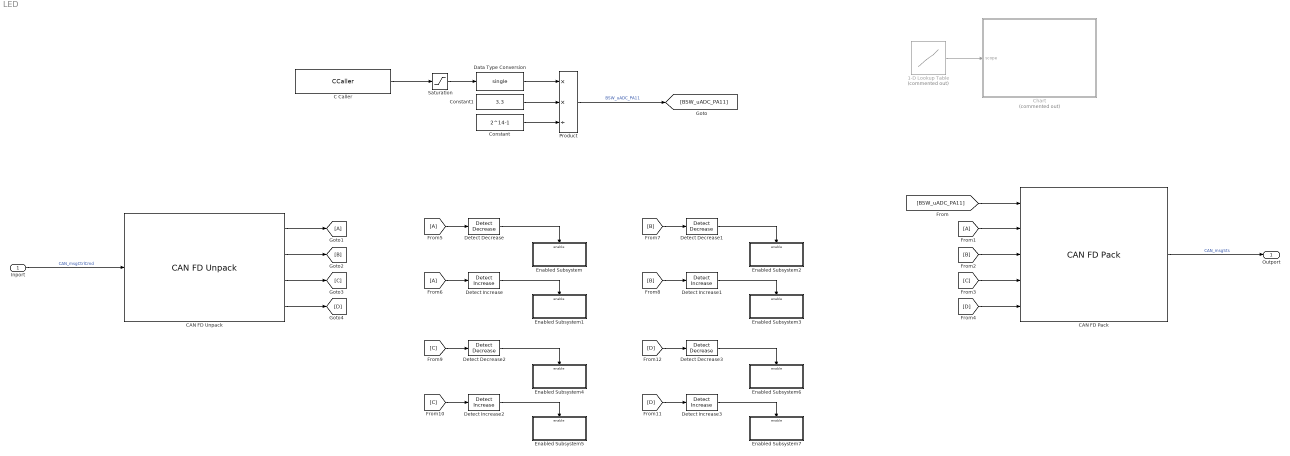
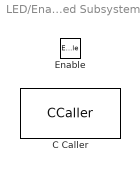
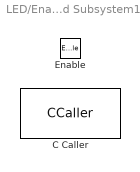
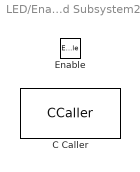
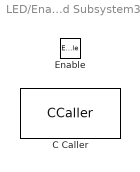
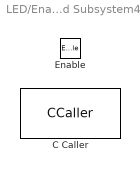
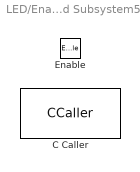
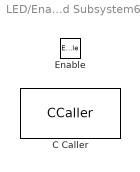
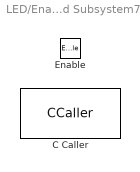
== stateflow chart LED/Chart ==
  state LED0_ON
    en:
    LED0_ON();
  state LED0_OFF
    en:
    LED0_OFF();
  state LED1_ON
    en:
    LED1_ON();
  state LED1_OFF
    en:
    LED1_OFF();
  state LED2_ON
    en:
    LED2_ON();
  state LED2_OFF
    en:
    LED2_OFF();
  state LED3_ON
    en:
    LED3_ON();
  state LED3_OFF
    en:
    LED3_OFF();
  (default) -> LED0_ON
  LED0_OFF -> LED0_ON : [after(1,sec)]
  LED0_ON -> LED0_OFF [order 2] : [scope == 1 &&... after(1,sec)]
  LED0_ON -> LED1_ON [order 1] : [scope > 1&&... after(1,sec)]
  LED1_OFF -> LED0_OFF : [after(1,sec)]
  LED1_ON -> LED1_OFF [order 2] : [scope == 2&&... after(1,sec)]
  LED1_ON -> LED2_ON [order 1] : [scope > 2&&... after(1,sec)]
  LED2_OFF -> LED1_OFF : [after(1,sec)]
  LED2_ON -> LED2_OFF [order 2] : [scope == 3&&... after(1,sec)]
  LED2_ON -> LED3_ON [order 1] : [scope > 3&&... after(1,sec)]
  LED3_OFF -> LED2_OFF : [after(1,sec)]
  LED3_ON -> LED3_OFF : [after(1,sec)]
  data: scope input uint8

/*
 * File: LED.c
 *
 * Code generated for Simulink model 'LED'.
 *
 * Model version                  : 14.135
 * Simulink Coder version         : 9.8 (R2022b) 13-May-2022
 * C/C++ source code generated on : Thu Jul  2 17:44:00 2026
 *
 * Target selection: ert.tlc
 * Embedded hardware selection: ARM Compatible->ARM 7
 * Code generation objectives: Unspecified
 * Validation result: Not run
 */

#include "LED.h"
#include "rtwtypes.h"
#include "LED_types.h"

/* Exported block signals */
CAN_FD_MESSAGE_BUS CAN_msgCtrlCmd;     /* '<Root>/Inport' */
CAN_FD_MESSAGE_BUS CAN_msgSts;         /* '<Root>/CAN FD Pack' */
real32_T BSW_uADC_PA11;                /* '<Root>/Product' */

/* Block signals (default storage) */
B_LED_T LED_B;

/* Block states (default storage) */
DW_LED_T LED_DW;

/* Model step function */
void LED_step(void)
{
  uint16_T rtb_Saturation;

  /* CCaller: '<Root>/C Caller' */
  rtb_Saturation = ADC_userGetAdc();

  /* Saturate: '<Root>/Saturation' */
  if (rtb_Saturation > 16383) {
    rtb_Saturation = 16383U;
  }

  /* Product: '<Root>/Product' incorporates:
   *  Constant: '<Root>/Constant'
   *  Constant: '<Root>/Constant1'
   *  DataTypeConversion: '<Root>/Data Type Conversion'
   *  Saturate: '<Root>/Saturation'
   */
  BSW_uADC_PA11 = (real32_T)rtb_Saturation * 3.3F / 16383.0F;

  /* S-Function (scanfdunpack): '<Root>/CAN FD Unpack' incorporates:
   *  Inport: '<Root>/Inport'
   */
  {
    /* S-Function (scanfdunpack): '<Root>/CAN FD Unpack' */
    if ((8 == CAN_msgCtrlCmd.Length) && (CAN_msgCtrlCmd.ID != INVALID_CAN_ID) )
    {
      if ((257 == CAN_msgCtrlCmd.ID) && (0U == CAN_msgCtrlCmd.Extended) ) {
        {
          /* --------------- START Unpacking signal 0 ------------------
           *  startBit                = 0
           *  length                  = 1
           *  desiredSignalByteLayout = BIGENDIAN
           *  dataType                = UNSIGNED
           *  factor                  = 1.0
           *  offset                  = 0.0
           * -----------------------------------------------------------------------*/
          {
            real64_T outValue = 0;

            {
              uint8_T unpackedValue = 0;

              {
                uint8_T tempValue = (uint8_T) (0);

                {
                  tempValue = tempValue | (uint8_T)((uint8_T)
                    (CAN_msgCtrlCmd.Data[0]) & (uint8_T)(0x1U));
                }

                unpackedValue = tempValue;
              }

              outValue = (real64_T) (unpackedValue);
            }

            {
              real64_T result = (real64_T) outValue;
              LED_B.CANFDUnpack_o1 = result;
            }
          }

          /* --------------- START Unpacking signal 1 ------------------
           *  startBit                = 6
           *  length                  = 1
           *  desiredSignalByteLayout = BIGENDIAN
           *  dataType                = UNSIGNED
           *  factor                  = 1.0
           *  offset                  = 0.0
           * -----------------------------------------------------------------------*/
          {
            real64_T outValue = 0;

            {
              uint8_T unpackedValue = 0;

              {
                uint8_T tempValue = (uint8_T) (0);

                {
                  tempValue = tempValue | (uint8_T)((uint8_T)((uint8_T)
                    (CAN_msgCtrlCmd.Data[0]) & (uint8_T)(0x40U)) >> 6);
                }

                unpackedValue = tempValue;
              }

              outValue = (real64_T) (unpackedValue);
            }

            {
              real64_T result = (real64_T) outValue;
              LED_B.CANFDUnpack_o2 = result;
            }
          }

          /* --------------- START Unpacking signal 2 ------------------
           *  startBit                = 2
           *  length                  = 1
           *  desiredSignalByteLayout = BIGENDIAN
           *  dataType                = UNSIGNED
           *  factor                  = 1.0
           *  offset                  = 0.0
           * -----------------------------------------------------------------------*/
          {
            real64_T outValue = 0;

            {
              uint8_T unpackedValue = 0;

              {
                uint8_T tempValue = (uint8_T) (0);

                {
                  tempValue = tempValue | (uint8_T)((uint8_T)((uint8_T)
                    (CAN_msgCtrlCmd.Data[0]) & (uint8_T)(0x4U)) >> 2);
                }

                unpackedValue = tempValue;
              }

              outValue = (real64_T) (unpackedValue);
            }

            {
              real64_T result = (real64_T) outValue;
              LED_B.CANFDUnpack_o3 = result;
            }
          }

          /* --------------- START Unpacking signal 3 ------------------
           *  startBit                = 3
           *  length                  = 1
           *  desiredSignalByteLayout = BIGENDIAN
           *  dataType                = UNSIGNED
           *  factor                  = 1.0
           *  offset                  = 0.0
           * -----------------------------------------------------------------------*/
          {
            real64_T outValue = 0;

            {
              uint8_T unpackedValue = 0;

              {
                uint8_T tempValue = (uint8_T) (0);

                {
                  tempValue = tempValue | (uint8_T)((uint8_T)((uint8_T)
                    (CAN_msgCtrlCmd.Data[0]) & (uint8_T)(0x8U)) >> 3);
                }

                unpackedValue = tempValue;
              }

              outValue = (real64_T) (unpackedValue);
            }

            {
              real64_T result = (real64_T) outValue;
              LED_B.CANFDUnpack_o4 = result;
            }
          }
        }
      }
    }
  }

  /* S-Function (scanfdpack): '<Root>/CAN FD Pack' */
  /* S-Function (scanfdpack): '<Root>/CAN FD Pack' */
  CAN_msgSts.ID = 258;
  CAN_msgSts.Length = 8U;
  CAN_msgSts.Extended = 0U;
  CAN_msgSts.Remote = 0;
  CAN_msgSts.BRS = 1;
  CAN_msgSts.ProtocolMode = 1;
  CAN_msgSts.DLC = 8U;
  CAN_msgSts.Data[0] = 0;
  CAN_msgSts.Data[1] = 0;
  CAN_msgSts.Data[2] = 0;
  CAN_msgSts.Data[3] = 0;
  CAN_msgSts.Data[4] = 0;
  CAN_msgSts.Data[5] = 0;
  CAN_msgSts.Data[6] = 0;
  CAN_msgSts.Data[7] = 0;
  CAN_msgSts.Data[8] = 0;
  CAN_msgSts.Data[9] = 0;
  CAN_msgSts.Data[10] = 0;
  CAN_msgSts.Data[11] = 0;
  CAN_msgSts.Data[12] = 0;
  CAN_msgSts.Data[13] = 0;
  CAN_msgSts.Data[14] = 0;
  CAN_msgSts.Data[15] = 0;
  CAN_msgSts.Data[16] = 0;
  CAN_msgSts.Data[17] = 0;
  CAN_msgSts.Data[18] = 0;
  CAN_msgSts.Data[19] = 0;
  CAN_msgSts.Data[20] = 0;
  CAN_msgSts.Data[21] = 0;
  CAN_msgSts.Data[22] = 0;
  CAN_msgSts.Data[23] = 0;
  CAN_msgSts.Data[24] = 0;
  CAN_msgSts.Data[25] = 0;
  CAN_msgSts.Data[26] = 0;
  CAN_msgSts.Data[27] = 0;
  CAN_msgSts.Data[28] = 0;
  CAN_msgSts.Data[29] = 0;
  CAN_msgSts.Data[30] = 0;
  CAN_msgSts.Data[31] = 0;
  CAN_msgSts.Data[32] = 0;
  CAN_msgSts.Data[33] = 0;
  CAN_msgSts.Data[34] = 0;
  CAN_msgSts.Data[35] = 0;
  CAN_msgSts.Data[36] = 0;
  CAN_msgSts.Data[37] = 0;
  CAN_msgSts.Data[38] = 0;
  CAN_msgSts.Data[39] = 0;
  CAN_msgSts.Data[40] = 0;
  CAN_msgSts.Data[41] = 0;
  CAN_msgSts.Data[42] = 0;
  CAN_msgSts.Data[43] = 0;
  CAN_msgSts.Data[44] = 0;
  CAN_msgSts.Data[45] = 0;
  CAN_msgSts.Data[46] = 0;
  CAN_msgSts.Data[47] = 0;
  CAN_msgSts.Data[48] = 0;
  CAN_msgSts.Data[49] = 0;
  CAN_msgSts.Data[50] = 0;
  CAN_msgSts.Data[51] = 0;
  CAN_msgSts.Data[52] = 0;
  CAN_msgSts.Data[53] = 0;
  CAN_msgSts.Data[54] = 0;
  CAN_msgSts.Data[55] = 0;
  CAN_msgSts.Data[56] = 0;
  CAN_msgSts.Data[57] = 0;
  CAN_msgSts.Data[58] = 0;
  CAN_msgSts.Data[59] = 0;
  CAN_msgSts.Data[60] = 0;
  CAN_msgSts.Data[61] = 0;
  CAN_msgSts.Data[62] = 0;
  CAN_msgSts.Data[63] = 0;

  {
    /* --------------- START Packing signal 0 ------------------
     *  startBit                = 16
     *  length                  = 16
     *  desiredSignalByteLayout = BIGENDIAN
     *  dataType                = UNSIGNED
     *  factor                  = 0.001
     *  offset                  = 0.0
     *  minimum                 = 0.0
     *  maximum                 = 0.0
     * -----------------------------------------------------------------------*/
    {
      real32_T outValue = 0;

      {
        real32_T result = BSW_uADC_PA11;

        /* no offset to apply */
        result = result * (1 / 0.001F);

        /* round to closest integer value for integer CAN signal */
        outValue = roundf(result);
      }

      {
        uint16_T packedValue;
        if (outValue > (real32_T)(65535)) {
          packedValue = (uint16_T) 65535;
        } else if (outValue < (real32_T)(0)) {
          packedValue = (uint16_T) 0;
        } else {
          packedValue = (uint16_T) (outValue);
        }

        {
          {
            CAN_msgSts.Data[2] = CAN_msgSts.Data[2] | (uint8_T)((uint16_T)
              (packedValue & (uint16_T)0xFFU));
            CAN_msgSts.Data[1] = CAN_msgSts.Data[1] | (uint8_T)((uint16_T)
              ((uint16_T)(packedValue & (uint16_T)0xFF00U) >> 8));
          }
        }
      }
    }

    /* --------------- START Packing signal 1 ------------------
     *  startBit                = 0
     *  length                  = 1
     *  desiredSignalByteLayout = BIGENDIAN
     *  dataType                = UNSIGNED
     *  factor                  = 1.0
     *  offset                  = 0.0
     *  minimum                 = 0.0
     *  maximum                 = 0.0
     * -----------------------------------------------------------------------*/
    {
      real64_T outValue = 0;

      {
        real64_T result = LED_B.CANFDUnpack_o1;

        /* no scaling required */
        /* round to closest integer value for integer CAN signal */
        outValue = round(result);
      }

      {
        uint8_T packedValue;
        if (outValue > (real64_T)(1)) {
          packedValue = (uint8_T) 1;
        } else if (outValue < (real64_T)(0)) {
          packedValue = (uint8_T) 0;
        } else {
          packedValue = (uint8_T) (outValue);
        }

        {
          {
            CAN_msgSts.Data[0] = CAN_msgSts.Data[0] | (uint8_T)((uint8_T)
              (packedValue & (uint8_T)0x1U));
          }
        }
      }
    }

    /* --------------- START Packing signal 2 ------------------
     *  startBit                = 3
     *  length                  = 1
     *  desiredSignalByteLayout = BIGENDIAN
     *  dataType                = UNSIGNED
     *  factor                  = 1.0
     *  offset                  = 0.0
     *  minimum                 = 0.0
     *  maximum                 = 0.0
     * -----------------------------------------------------------------------*/
    {
      real64_T outValue = 0;

      {
        real64_T result = LED_B.CANFDUnpack_o2;

        /* no scaling required */
        /* round to closest integer value for integer CAN signal */
        outValue = round(result);
      }

      {
        uint8_T packedValue;
        if (outValue > (real64_T)(1)) {
          packedValue = (uint8_T) 1;
        } else if (outValue < (real64_T)(0)) {
          packedValue = (uint8_T) 0;
        } else {
          packedValue = (uint8_T) (outValue);
        }

        {
          {
            CAN_msgSts.Data[0] = CAN_msgSts.Data[0] | (uint8_T)((uint8_T)
              ((uint8_T)(packedValue & (uint8_T)0x1U) << 3));
          }
        }
      }
    }

    /* --------------- START Packing signal 3 ------------------
     *  startBit                = 1
     *  length                  = 1
     *  desiredSignalByteLayout = BIGENDIAN
     *  dataType                = UNSIGNED
     *  factor                  = 1.0
     *  offset                  = 0.0
     *  minimum                 = 0.0
     *  maximum                 = 0.0
     * -----------------------------------------------------------------------*/
    {
      real64_T outValue = 0;

      {
        real64_T result = LED_B.CANFDUnpack_o3;

        /* no scaling required */
        /* round to closest integer value for integer CAN signal */
        outValue = round(result);
      }

      {
        uint8_T packedValue;
        if (outValue > (real64_T)(1)) {
          packedValue = (uint8_T) 1;
        } else if (outValue < (real64_T)(0)) {
          packedValue = (uint8_T) 0;
        } else {
          packedValue = (uint8_T) (outValue);
        }

        {
          {
            CAN_msgSts.Data[0] = CAN_msgSts.Data[0] | (uint8_T)((uint8_T)
              ((uint8_T)(packedValue & (uint8_T)0x1U) << 1));
          }
        }
      }
    }

    /* --------------- START Packing signal 4 ------------------
     *  startBit                = 2
     *  length                  = 1
     *  desiredSignalByteLayout = BIGENDIAN
     *  dataType                = UNSIGNED
     *  factor                  = 1.0
     *  offset                  = 0.0
     *  minimum                 = 0.0
     *  maximum                 = 0.0
     * -----------------------------------------------------------------------*/
    {
      real64_T outValue = 0;

      {
        real64_T result = LED_B.CANFDUnpack_o4;

        /* no scaling required */
        /* round to closest integer value for integer CAN signal */
        outValue = round(result);
      }

      {
        uint8_T packedValue;
        if (outValue > (real64_T)(1)) {
          packedValue = (uint8_T) 1;
        } else if (outValue < (real64_T)(0)) {
          packedValue = (uint8_T) 0;
        } else {
          packedValue = (uint8_T) (outValue);
        }

        {
          {
            CAN_msgSts.Data[0] = CAN_msgSts.Data[0] | (uint8_T)((uint8_T)
              ((uint8_T)(packedValue & (uint8_T)0x1U) << 2));
          }
        }
      }
    }
  }

  /* Outputs for Enabled SubSystem: '<Root>/Enabled Subsystem' incorporates:
   *  EnablePort: '<S9>/Enable'
   */
  /* RelationalOperator: '<S1>/FixPt Relational Operator' incorporates:
   *  UnitDelay: '<S1>/Delay Input1'
   *
   * Block description for '<S1>/Delay Input1':
   *
   *  Store in Global RAM
   */
  if (LED_B.CANFDUnpack_o1 < LED_DW.DelayInput1_DSTATE) {
    /* CCaller: '<S9>/C Caller' */
    LED0_OFF();
  }

  /* End of RelationalOperator: '<S1>/FixPt Relational Operator' */
  /* End of Outputs for SubSystem: '<Root>/Enabled Subsystem' */

  /* Outputs for Enabled SubSystem: '<Root>/Enabled Subsystem1' incorporates:
   *  EnablePort: '<S10>/Enable'
   */
  /* RelationalOperator: '<S5>/FixPt Relational Operator' incorporates:
   *  UnitDelay: '<S5>/Delay Input1'
   *
   * Block description for '<S5>/Delay Input1':
   *
   *  Store in Global RAM
   */
  if (LED_B.CANFDUnpack_o1 > LED_DW.DelayInput1_DSTATE_b) {
    /* CCaller: '<S10>/C Caller' */
    LED0_ON();
  }

  /* End of RelationalOperator: '<S5>/FixPt Relational Operator' */
  /* End of Outputs for SubSystem: '<Root>/Enabled Subsystem1' */

  /* Outputs for Enabled SubSystem: '<Root>/Enabled Subsystem2' incorporates:
   *  EnablePort: '<S11>/Enable'
   */
  /* RelationalOperator: '<S2>/FixPt Relational Operator' incorporates:
   *  UnitDelay: '<S2>/Delay Input1'
   *
   * Block description for '<S2>/Delay Input1':
   *
   *  Store in Global RAM
   */
  if (LED_B.CANFDUnpack_o2 < LED_DW.DelayInput1_DSTATE_i) {
    /* CCaller: '<S11>/C Caller' */
    LED1_OFF();
  }

  /* End of RelationalOperator: '<S2>/FixPt Relational Operator' */
  /* End of Outputs for SubSystem: '<Root>/Enabled Subsystem2' */

  /* Outputs for Enabled SubSystem: '<Root>/Enabled Subsystem3' incorporates:
   *  EnablePort: '<S12>/Enable'
   */
  /* RelationalOperator: '<S6>/FixPt Relational Operator' incorporates:
   *  UnitDelay: '<S6>/Delay Input1'
   *
   * Block description for '<S6>/Delay Input1':
   *
   *  Store in Global RAM
   */
  if (LED_B.CANFDUnpack_o2 > LED_DW.DelayInput1_DSTATE_e) {
    /* CCaller: '<S12>/C Caller' */
    LED1_ON();
  }

  /* End of RelationalOperator: '<S6>/FixPt Relational Operator' */
  /* End of Outputs for SubSystem: '<Root>/Enabled Subsystem3' */

  /* Outputs for Enabled SubSystem: '<Root>/Enabled Subsystem4' incorporates:
   *  EnablePort: '<S13>/Enable'
   */
  /* RelationalOperator: '<S3>/FixPt Relational Operator' incorporates:
   *  UnitDelay: '<S3>/Delay Input1'
   *
   * Block description for '<S3>/Delay Input1':
   *
   *  Store in Global RAM
   */
  if (LED_B.CANFDUnpack_o3 < LED_DW.DelayInput1_DSTATE_er) {
    /* CCaller: '<S13>/C Caller' */
    LED2_OFF();
  }

  /* End of RelationalOperator: '<S3>/FixPt Relational Operator' */
  /* End of Outputs for SubSystem: '<Root>/Enabled Subsystem4' */

  /* Outputs for Enabled SubSystem: '<Root>/Enabled Subsystem5' incorporates:
   *  EnablePort: '<S14>/Enable'
   */
  /* RelationalOperator: '<S7>/FixPt Relational Operator' incorporates:
   *  UnitDelay: '<S7>/Delay Input1'
   *
   * Block description for '<S7>/Delay Input1':
   *
   *  Store in Global RAM
   */
  if (LED_B.CANFDUnpack_o3 > LED_DW.DelayInput1_DSTATE_ee) {
    /* CCaller: '<S14>/C Caller' */
    LED2_ON();
  }

  /* End of RelationalOperator: '<S7>/FixPt Relational Operator' */
  /* End of Outputs for SubSystem: '<Root>/Enabled Subsystem5' */

  /* Outputs for Enabled SubSystem: '<Root>/Enabled Subsystem6' incorporates:
   *  EnablePort: '<S15>/Enable'
   */
  /* RelationalOperator: '<S4>/FixPt Relational Operator' incorporates:
   *  UnitDelay: '<S4>/Delay Input1'
   *
   * Block description for '<S4>/Delay Input1':
   *
   *  Store in Global RAM
   */
  if (LED_B.CANFDUnpack_o4 < LED_DW.DelayInput1_DSTATE_o) {
    /* CCaller: '<S15>/C Caller' */
    LED3_OFF();
  }

  /* End of RelationalOperator: '<S4>/FixPt Relational Operator' */
  /* End of Outputs for SubSystem: '<Root>/Enabled Subsystem6' */

  /* Outputs for Enabled SubSystem: '<Root>/Enabled Subsystem7' incorporates:
   *  EnablePort: '<S16>/Enable'
   */
  /* RelationalOperator: '<S8>/FixPt Relational Operator' incorporates:
   *  UnitDelay: '<S8>/Delay Input1'
   *
   * Block description for '<S8>/Delay Input1':
   *
   *  Store in Global RAM
   */
  if (LED_B.CANFDUnpack_o4 > LED_DW.DelayInput1_DSTATE_f) {
    /* CCaller: '<S16>/C Caller' */
    LED3_ON();
  }

  /* End of RelationalOperator: '<S8>/FixPt Relational Operator' */
  /* End of Outputs for SubSystem: '<Root>/Enabled Subsystem7' */

  /* Update for UnitDelay: '<S1>/Delay Input1'
   *
   * Block description for '<S1>/Delay Input1':
   *
   *  Store in Global RAM
   */
  LED_DW.DelayInput1_DSTATE = LED_B.CANFDUnpack_o1;

  /* Update for UnitDelay: '<S5>/Delay Input1'
   *
   * Block description for '<S5>/Delay Input1':
   *
   *  Store in Global RAM
   */
  LED_DW.DelayInput1_DSTATE_b = LED_B.CANFDUnpack_o1;

  /* Update for UnitDelay: '<S2>/Delay Input1'
   *
   * Block description for '<S2>/Delay Input1':
   *
   *  Store in Global RAM
   */
  LED_DW.DelayInput1_DSTATE_i = LED_B.CANFDUnpack_o2;

  /* Update for UnitDelay: '<S6>/Delay Input1'
   *
   * Block description for '<S6>/Delay Input1':
   *
   *  Store in Global RAM
   */
  LED_DW.DelayInput1_DSTATE_e = LED_B.CANFDUnpack_o2;

  /* Update for UnitDelay: '<S3>/Delay Input1'
   *
   * Block description for '<S3>/Delay Input1':
   *
   *  Store in Global RAM
   */
  LED_DW.DelayInput1_DSTATE_er = LED_B.CANFDUnpack_o3;

  /* Update for UnitDelay: '<S7>/Delay Input1'
   *
   * Block description for '<S7>/Delay Input1':
   *
   *  Store in Global RAM
   */
  LED_DW.DelayInput1_DSTATE_ee = LED_B.CANFDUnpack_o3;

  /* Update for UnitDelay: '<S4>/Delay Input1'
   *
   * Block description for '<S4>/Delay Input1':
   *
   *  Store in Global RAM
   */
  LED_DW.DelayInput1_DSTATE_o = LED_B.CANFDUnpack_o4;

  /* Update for UnitDelay: '<S8>/Delay Input1'
   *
   * Block description for '<S8>/Delay Input1':
   *
   *  Store in Global RAM
   */
  LED_DW.DelayInput1_DSTATE_f = LED_B.CANFDUnpack_o4;
}
